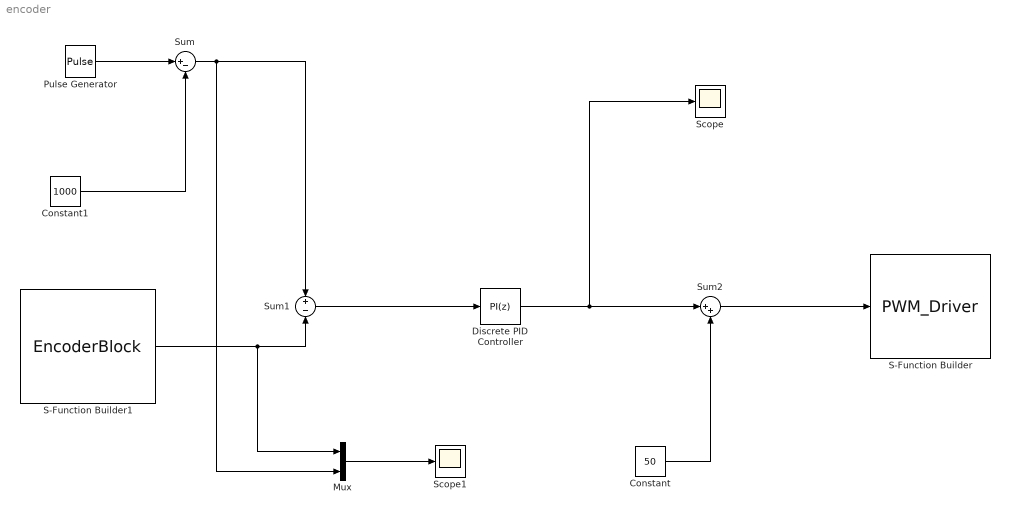
/*
 * Academic License - for use in teaching, academic research, and meeting
 * course requirements at degree granting institutions only.  Not for
 * government, commercial, or other organizational use.
 *
 * File: encoder.c
 *
 * Code generated for Simulink model 'encoder'.
 *
 * Model version                  : 1.5
 * Simulink Coder version         : 8.12 (R2017a) 16-Feb-2017
 * C/C++ source code generated on : Tue Apr 17 18:27:39 2018
 *
 * Target selection: ert.tlc
 * Embedded hardware selection: Atmel->AVR
 * Code generation objectives: Unspecified
 * Validation result: Not run
 */

#include "encoder.h"
#include "encoder_private.h"
#include "encoder_dt.h"

/* Block signals (auto storage) */
B_encoder_T encoder_B;

/* Block states (auto storage) */
DW_encoder_T encoder_DW;

/* Real-time model */
RT_MODEL_encoder_T encoder_M_;
RT_MODEL_encoder_T *const encoder_M = &encoder_M_;

/* Model step function */
void encoder_step(void)
{
  real_T rtb_Sum1;
  real_T u0;

  /* DiscretePulseGenerator: '<Root>/Pulse Generator' */
  rtb_Sum1 = (encoder_DW.clockTickCounter < encoder_P.PulseGenerator_Duty) &&
    (encoder_DW.clockTickCounter >= 0L) ? encoder_P.PulseGenerator_Amp : 0.0;
  if (encoder_DW.clockTickCounter >= encoder_P.PulseGenerator_Period - 1.0) {
    encoder_DW.clockTickCounter = 0L;
  } else {
    encoder_DW.clockTickCounter++;
  }

  /* End of DiscretePulseGenerator: '<Root>/Pulse Generator' */

  /* Sum: '<Root>/Sum' incorporates:
   *  Constant: '<Root>/Constant1'
   */
  encoder_B.Sum = rtb_Sum1 - encoder_P.Constant1_Value;

  /* S-Function (EncoderBlock): '<Root>/S-Function Builder1' */
  EncoderBlock_Outputs_wrapper(&encoder_B.SFunctionBuilder1,
    &encoder_DW.SFunctionBuilder1_DSTATE);

  /* Sum: '<Root>/Sum1' */
  rtb_Sum1 = encoder_B.Sum - encoder_B.SFunctionBuilder1;

  /* Sum: '<S1>/Sum' incorporates:
   *  DiscreteIntegrator: '<S1>/Integrator'
   *  Gain: '<S1>/Proportional Gain'
   */
  u0 = encoder_P.DiscretePIDController_P * rtb_Sum1 +
    encoder_DW.Integrator_DSTATE;

  /* Saturate: '<S1>/Saturate' */
  if (u0 > encoder_P.DiscretePIDController_UpperSatu) {
    encoder_B.Saturate = encoder_P.DiscretePIDController_UpperSatu;
  } else if (u0 < encoder_P.DiscretePIDController_LowerSatu) {
    encoder_B.Saturate = encoder_P.DiscretePIDController_LowerSatu;
  } else {
    encoder_B.Saturate = u0;
  }

  /* End of Saturate: '<S1>/Saturate' */

  /* Sum: '<Root>/Sum2' incorporates:
   *  Constant: '<Root>/Constant'
   */
  encoder_B.Sum2 = encoder_B.Saturate + encoder_P.Constant_Value;

  /* S-Function (PWM_Driver): '<Root>/S-Function Builder' */
  PWM_Driver_Outputs_wrapper(&encoder_B.Sum2,
    &encoder_DW.SFunctionBuilder_DSTATE);

  /* Update for S-Function (EncoderBlock): '<Root>/S-Function Builder1' */

  /* S-Function "EncoderBlock_wrapper" Block: <Root>/S-Function Builder1 */
  EncoderBlock_Update_wrapper(&encoder_B.SFunctionBuilder1,
    &encoder_DW.SFunctionBuilder1_DSTATE);

  /* Update for DiscreteIntegrator: '<S1>/Integrator' incorporates:
   *  Gain: '<S1>/Integral Gain'
   */
  encoder_DW.Integrator_DSTATE += encoder_P.DiscretePIDController_I * rtb_Sum1 *
    encoder_P.Integrator_gainval;

  /* Update for S-Function (PWM_Driver): '<Root>/S-Function Builder' */

  /* S-Function "PWM_Driver_wrapper" Block: <Root>/S-Function Builder */
  PWM_Driver_Update_wrapper(&encoder_B.Sum2, &encoder_DW.SFunctionBuilder_DSTATE);

  /* External mode */
  rtExtModeUploadCheckTrigger(1);

  {                                    /* Sample time: [0.05s, 0.0s] */
    rtExtModeUpload(0, encoder_M->Timing.taskTime0);
  }

  /* signal main to stop simulation */
  {                                    /* Sample time: [0.05s, 0.0s] */
    if ((rtmGetTFinal(encoder_M)!=-1) &&
        !((rtmGetTFinal(encoder_M)-encoder_M->Timing.taskTime0) >
          encoder_M->Timing.taskTime0 * (DBL_EPSILON))) {
      rtmSetErrorStatus(encoder_M, "Simulation finished");
    }

    if (rtmGetStopRequested(encoder_M)) {
      rtmSetErrorStatus(encoder_M, "Simulation finished");
    }
  }

  /* Update absolute time for base rate */
  /* The "clockTick0" counts the number of times the code of this task has
   * been executed. The absolute time is the multiplication of "clockTick0"
   * and "Timing.stepSize0". Size of "clockTick0" ensures timer will not
   * overflow during the application lifespan selected.
   */
  encoder_M->Timing.taskTime0 =
    (++encoder_M->Timing.clockTick0) * encoder_M->Timing.stepSize0;
}
